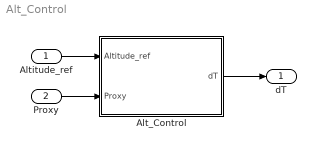
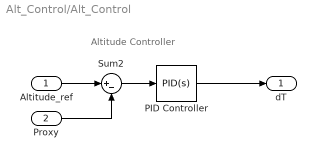
/*
 * Alt_Control.cpp
 *
 * Academic License - for use in teaching, academic research, and meeting
 * course requirements at degree granting institutions only.  Not for
 * government, commercial, or other organizational use.
 *
 * Code generation for model "Alt_Control".
 *
 * Model version              : 1.92
 * Simulink Coder version : 8.8.1 (R2015aSP1) 04-Sep-2015
 * C++ source code generated on : Tue Apr 05 14:37:06 2016
 *
 * Target selection: grt.tlc
 * Note: GRT includes extra infrastructure and instrumentation for prototyping
 * Embedded hardware selection: ARM Compatible->ARM Cortex
 * Code generation objective: Execution efficiency
 * Validation result: Not run
 */

#include "Alt_Control.h"
#include "Alt_Control_private.h"

/*
 * This function updates continuous states using the ODE2 fixed-step
 * solver algorithm
 */
void Alt_ControlModelClass::rt_ertODEUpdateContinuousStates(RTWSolverInfo *si )
{
  time_T tnew = rtsiGetSolverStopTime(si);
  time_T h = rtsiGetStepSize(si);
  real_T *x = rtsiGetContStates(si);
  ODE2_IntgData *id = (ODE2_IntgData *)rtsiGetSolverData(si);
  real_T *y = id->y;
  real_T *f0 = id->f[0];
  real_T *f1 = id->f[1];
  real_T temp;
  int_T i;
  int_T nXc = 2;
  rtsiSetSimTimeStep(si,MINOR_TIME_STEP);

  /* Save the state values at time t in y, we'll use x as ynew. */
  (void) memcpy(y, x,
                (uint_T)nXc*sizeof(real_T));

  /* Assumes that rtsiSetT and ModelOutputs are up-to-date */
  /* f0 = f(t,y) */
  rtsiSetdX(si, f0);
  Alt_Control_derivatives();

  /* f1 = f(t + h, y + h*f0) */
  for (i = 0; i < nXc; i++) {
    x[i] = y[i] + (h*f0[i]);
  }

  rtsiSetT(si, tnew);
  rtsiSetdX(si, f1);
  this->step();
  Alt_Control_derivatives();

  /* tnew = t + h
     ynew = y + (h/2)*(f0 + f1) */
  temp = 0.5*h;
  for (i = 0; i < nXc; i++) {
    x[i] = y[i] + temp*(f0[i] + f1[i]);
  }

  rtsiSetSimTimeStep(si,MAJOR_TIME_STEP);
}

/* Model step function */
void Alt_ControlModelClass::step()
{
  real_T rtb_Sum2;
  real_T rtb_Sum;
  real_T rtb_Saturate;
  if (rtmIsMajorTimeStep((&Alt_Control_M))) {
    /* set solver stop time */
    if (!((&Alt_Control_M)->Timing.clockTick0+1)) {
      rtsiSetSolverStopTime(&(&Alt_Control_M)->solverInfo, (((&Alt_Control_M)
        ->Timing.clockTickH0 + 1) * (&Alt_Control_M)->Timing.stepSize0 *
        4294967296.0));
    } else {
      rtsiSetSolverStopTime(&(&Alt_Control_M)->solverInfo, (((&Alt_Control_M)
        ->Timing.clockTick0 + 1) * (&Alt_Control_M)->Timing.stepSize0 +
        (&Alt_Control_M)->Timing.clockTickH0 * (&Alt_Control_M)
        ->Timing.stepSize0 * 4294967296.0));
    }
  }                                    /* end MajorTimeStep */

  /* Update absolute time of base rate at minor time step */
  if (rtmIsMinorTimeStep((&Alt_Control_M))) {
    (&Alt_Control_M)->Timing.t[0] = rtsiGetT(&(&Alt_Control_M)->solverInfo);
  }

  /* Sum: '<S1>/Sum2' incorporates:
   *  Inport: '<Root>/Altitude_ref'
   *  Inport: '<Root>/Proxy'
   */
  rtb_Sum2 = Alt_Control_U.Altitude_ref - Alt_Control_U.Proxy;

  /* Gain: '<S2>/Filter Coefficient' incorporates:
   *  Gain: '<S2>/Derivative Gain'
   *  Integrator: '<S2>/Filter'
   *  Sum: '<S2>/SumD'
   */
  Alt_Control_B.FilterCoefficient = (Alt_Control_P.KaD * rtb_Sum2 -
    Alt_Control_X.Filter_CSTATE) * Alt_Control_P.KaN;

  /* Sum: '<S2>/Sum' incorporates:
   *  Gain: '<S2>/Proportional Gain'
   *  Integrator: '<S2>/Integrator'
   */
  rtb_Sum = (Alt_Control_P.KaP * rtb_Sum2 + Alt_Control_X.Integrator_CSTATE) +
    Alt_Control_B.FilterCoefficient;

  /* Saturate: '<S2>/Saturate' */
  if (rtb_Sum > Alt_Control_P.sata) {
    rtb_Saturate = Alt_Control_P.sata;
  } else if (rtb_Sum < -Alt_Control_P.sata) {
    rtb_Saturate = -Alt_Control_P.sata;
  } else {
    rtb_Saturate = rtb_Sum;
  }

  /* End of Saturate: '<S2>/Saturate' */

  /* Outport: '<Root>/dT' */
  Alt_Control_Y.dT = rtb_Saturate;

  /* Sum: '<S2>/SumI1' incorporates:
   *  Gain: '<S2>/Integral Gain'
   *  Gain: '<S2>/Kb'
   *  Sum: '<S2>/SumI2'
   */
  Alt_Control_B.SumI1 = (rtb_Saturate - rtb_Sum) * Alt_Control_P.Kba +
    Alt_Control_P.KaI * rtb_Sum2;
  if (rtmIsMajorTimeStep((&Alt_Control_M))) {
    rt_ertODEUpdateContinuousStates(&(&Alt_Control_M)->solverInfo);

    /* Update absolute time for base rate */
    /* The "clockTick0" counts the number of times the code of this task has
     * been executed. The absolute time is the multiplication of "clockTick0"
     * and "Timing.stepSize0". Size of "clockTick0" ensures timer will not
     * overflow during the application lifespan selected.
     * Timer of this task consists of two 32 bit unsigned integers.
     * The two integers represent the low bits Timing.clockTick0 and the high bits
     * Timing.clockTickH0. When the low bit overflows to 0, the high bits increment.
     */
    if (!(++(&Alt_Control_M)->Timing.clockTick0)) {
      ++(&Alt_Control_M)->Timing.clockTickH0;
    }

    (&Alt_Control_M)->Timing.t[0] = rtsiGetSolverStopTime(&(&Alt_Control_M)
      ->solverInfo);

    {
      /* Update absolute timer for sample time: [0.01s, 0.0s] */
      /* The "clockTick1" counts the number of times the code of this task has
       * been executed. The resolution of this integer timer is 0.01, which is the step size
       * of the task. Size of "clockTick1" ensures timer will not overflow during the
       * application lifespan selected.
       * Timer of this task consists of two 32 bit unsigned integers.
       * The two integers represent the low bits Timing.clockTick1 and the high bits
       * Timing.clockTickH1. When the low bit overflows to 0, the high bits increment.
       */
      (&Alt_Control_M)->Timing.clockTick1++;
      if (!(&Alt_Control_M)->Timing.clockTick1) {
        (&Alt_Control_M)->Timing.clockTickH1++;
      }
    }
  }                                    /* end MajorTimeStep */
}
